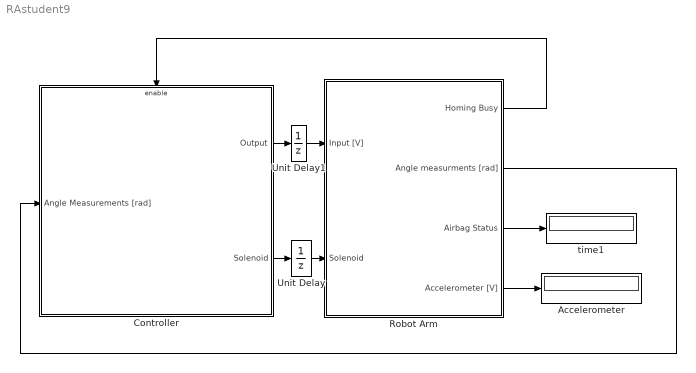
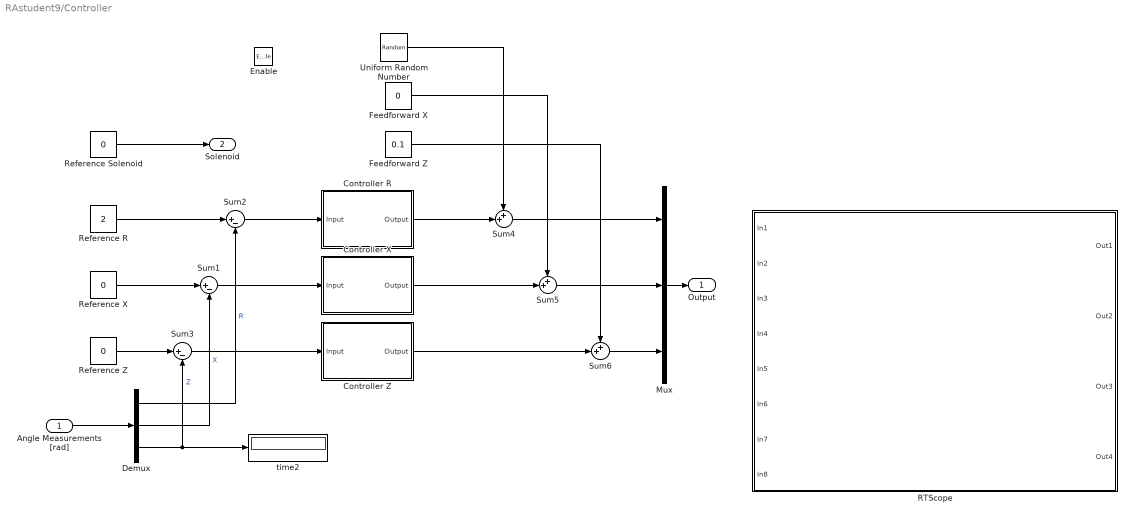
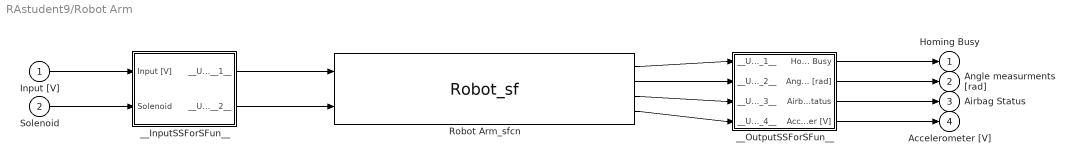
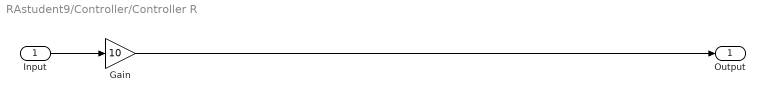
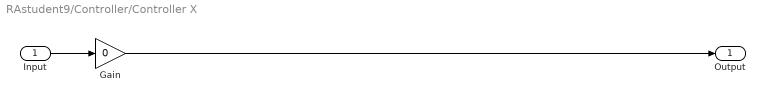
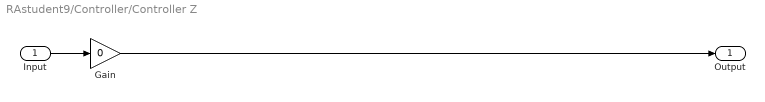
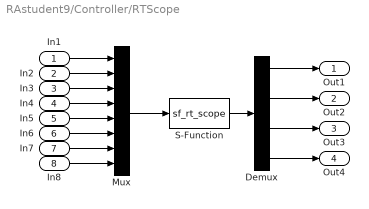
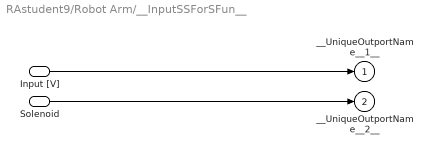
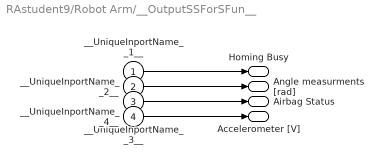
/*
 * RAstudent9.c
 *
 * Academic License - for use in teaching, academic research, and meeting
 * course requirements at degree granting institutions only.  Not for
 * government, commercial, or other organizational use.
 *
 * Code generation for model "RAstudent9".
 *
 * Model version              : 1.899
 * Simulink Coder version : 8.9 (R2015b) 13-Aug-2015
 * C source code generated on : Tue Apr  5 17:09:51 2016
 *
 * Target selection: ectarget.tlc
 * Note: GRT includes extra infrastructure and instrumentation for prototyping
 * Embedded hardware selection: 32-bit Generic
 * Code generation objectives: Unspecified
 * Validation result: Not run
 */

#include "RAstudent9.h"
#include "RAstudent9_private.h"
#include "RAstudent9_dt.h"
#undef S_FUNCTION_NAME
#if !defined(RTW_GENERATED_SFCN_TUNABLE_PRMS_Robot_sf)
#define RTW_GENERATED_SFCN_TUNABLE_PRMS_Robot_sf
#endif

#include "Robot_sf.h"

const real_T RAstudent9_RGND = 0.0;    /* real_T ground */

/* Block signals (auto storage) */
B_RAstudent9_T RAstudent9_B;

/* Block states (auto storage) */
DW_RAstudent9_T RAstudent9_DW;

/* Real-time model */
RT_MODEL_RAstudent9_T RAstudent9_M_;
RT_MODEL_RAstudent9_T *const RAstudent9_M = &RAstudent9_M_;
real_T rt_urand_Upu32_Yd_f_pw_snf(uint32_T *u)
{
  uint32_T lo;
  uint32_T hi;

  /* Uniform random number generator (random number between 0 and 1)

     #define IA      16807                      magic multiplier = 7^5
     #define IM      2147483647                 modulus = 2^31-1
     #define IQ      127773                     IM div IA
     #define IR      2836                       IM modulo IA
     #define S       4.656612875245797e-10      reciprocal of 2^31-1
     test = IA * (seed % IQ) - IR * (seed/IQ)
     seed = test < 0 ? (test + IM) : test
     return (seed*S)
   */
  lo = *u % 127773U * 16807U;
  hi = *u / 127773U * 2836U;
  if (lo < hi) {
    *u = 2147483647U - (hi - lo);
  } else {
    *u = lo - hi;
  }

  return (real_T)*u * 4.6566128752457969E-10;
}

/* Model output function */
void RAstudent9_output(void)
{
  /* Reset subsysRan breadcrumbs */
  srClearBC(RAstudent9_DW.Controller_SubsysRanBC);

  /* UnitDelay: '<Root>/Unit Delay1' */
  RAstudent9_B.UnitDelay1[0] = RAstudent9_DW.UnitDelay1_DSTATE[0];
  RAstudent9_B.UnitDelay1[1] = RAstudent9_DW.UnitDelay1_DSTATE[1];
  RAstudent9_B.UnitDelay1[2] = RAstudent9_DW.UnitDelay1_DSTATE[2];

  /* UnitDelay: '<Root>/Unit Delay' */
  RAstudent9_B.UnitDelay = RAstudent9_DW.UnitDelay_DSTATE;

  /* RTW Generated Level2 S-Function Block: '<S2>/Robot Arm_sfcn' (Robot_sf) */
  {
    SimStruct *rts = RAstudent9_M->childSfunctions[1];
    sfcnOutputs(rts, 0);
  }

  /* Outputs for Enabled SubSystem: '<Root>/Controller' incorporates:
   *  EnablePort: '<S1>/Enable'
   */
  if (RAstudent9_B.RobotArm_sfcn_o1 > 0.0) {
    if (!RAstudent9_DW.Controller_MODE) {
      RAstudent9_DW.Controller_MODE = true;
    }
  } else {
    if (RAstudent9_DW.Controller_MODE) {
      RAstudent9_DW.Controller_MODE = false;
    }
  }

  if (RAstudent9_DW.Controller_MODE) {
    /* UniformRandomNumber: '<S1>/Uniform Random Number' */
    RAstudent9_B.UniformRandomNumber =
      RAstudent9_DW.UniformRandomNumber_NextOutput;

    /* Sum: '<S1>/Sum4' incorporates:
     *  Constant: '<S1>/Reference R'
     *  Gain: '<S3>/Gain'
     *  Sum: '<S1>/Sum2'
     */
    RAstudent9_B.Sum4 = (RAstudent9_P.ReferenceR_Value -
                         RAstudent9_B.RobotArm_sfcn_o2[0]) *
      RAstudent9_P.Gain_Gain + RAstudent9_B.UniformRandomNumber;

    /* Sum: '<S1>/Sum5' incorporates:
     *  Constant: '<S1>/Feedforward X'
     *  Constant: '<S1>/Reference X'
     *  Gain: '<S4>/Gain'
     *  Sum: '<S1>/Sum1'
     */
    RAstudent9_B.Sum5 = (RAstudent9_P.ReferenceX_Value -
                         RAstudent9_B.RobotArm_sfcn_o2[1]) *
      RAstudent9_P.Gain_Gain_e + RAstudent9_P.FeedforwardX_Value;

    /* Sum: '<S1>/Sum6' incorporates:
     *  Constant: '<S1>/Feedforward Z'
     *  Constant: '<S1>/Reference Z'
     *  Gain: '<S5>/Gain'
     *  Sum: '<S1>/Sum3'
     */
    RAstudent9_B.Sum6 = (RAstudent9_P.ReferenceZ_Value -
                         RAstudent9_B.RobotArm_sfcn_o2[2]) *
      RAstudent9_P.Gain_Gain_l + RAstudent9_P.FeedforwardZ_Value;

    /* Constant: '<S1>/Reference Solenoid' */
    RAstudent9_B.ReferenceSolenoid = RAstudent9_P.ReferenceSolenoid_Value;

    /* Level2 S-Function Block: '<S6>/S-Function' (sf_rt_scope) */
    {
      SimStruct *rts = RAstudent9_M->childSfunctions[0];
      sfcnOutputs(rts, 0);
    }

    srUpdateBC(RAstudent9_DW.Controller_SubsysRanBC);
  }

  /* End of Outputs for SubSystem: '<Root>/Controller' */
}

/* Model update function */
void RAstudent9_update(void)
{
  /* Update for UnitDelay: '<Root>/Unit Delay1' */
  RAstudent9_DW.UnitDelay1_DSTATE[0] = RAstudent9_B.Sum4;
  RAstudent9_DW.UnitDelay1_DSTATE[1] = RAstudent9_B.Sum5;
  RAstudent9_DW.UnitDelay1_DSTATE[2] = RAstudent9_B.Sum6;

  /* Update for UnitDelay: '<Root>/Unit Delay' */
  RAstudent9_DW.UnitDelay_DSTATE = RAstudent9_B.ReferenceSolenoid;

  /* RTW Generated Level2 S-Function Block: '<S2>/Robot Arm_sfcn' (Robot_sf) */
  {
    SimStruct *rts = RAstudent9_M->childSfunctions[1];
    sfcnUpdate(rts, 0);
    if (ssGetErrorStatus(rts) != (NULL))
      return;
  }

  /* Update for Enabled SubSystem: '<Root>/Controller' incorporates:
   *  Update for EnablePort: '<S1>/Enable'
   */
  if (RAstudent9_DW.Controller_MODE) {
    /* Update for UniformRandomNumber: '<S1>/Uniform Random Number' */
    RAstudent9_DW.UniformRandomNumber_NextOutput =
      (RAstudent9_P.UniformRandomNumber_Maximum -
       RAstudent9_P.UniformRandomNumber_Minimum) * rt_urand_Upu32_Yd_f_pw_snf
      (&RAstudent9_DW.RandSeed) + RAstudent9_P.UniformRandomNumber_Minimum;
  }

  /* End of Update for SubSystem: '<Root>/Controller' */

  /* Update absolute time for base rate */
  /* The "clockTick0" counts the number of times the code of this task has
   * been executed. The absolute time is the multiplication of "clockTick0"
   * and "Timing.stepSize0". Size of "clockTick0" ensures timer will not
   * overflow during the application lifespan selected.
   * Timer of this task consists of two 32 bit unsigned integers.
   * The two integers represent the low bits Timing.clockTick0 and the high bits
   * Timing.clockTickH0. When the low bit overflows to 0, the high bits increment.
   */
  if (!(++RAstudent9_M->Timing.clockTick0)) {
    ++RAstudent9_M->Timing.clockTickH0;
  }

  RAstudent9_M->Timing.t[0] = RAstudent9_M->Timing.clockTick0 *
    RAstudent9_M->Timing.stepSize0 + RAstudent9_M->Timing.clockTickH0 *
    RAstudent9_M->Timing.stepSize0 * 4294967296.0;

  {
    /* Update absolute timer for sample time: [0.000244140625s, 0.0s] */
    /* The "clockTick1" counts the number of times the code of this task has
     * been executed. The absolute time is the multiplication of "clockTick1"
     * and "Timing.stepSize1". Size of "clockTick1" ensures timer will not
     * overflow during the application lifespan selected.
     * Timer of this task consists of two 32 bit unsigned integers.
     * The two integers represent the low bits Timing.clockTick1 and the high bits
     * Timing.clockTickH1. When the low bit overflows to 0, the high bits increment.
     */
    if (!(++RAstudent9_M->Timing.clockTick1)) {
      ++RAstudent9_M->Timing.clockTickH1;
    }

    RAstudent9_M->Timing.t[1] = RAstudent9_M->Timing.clockTick1 *
      RAstudent9_M->Timing.stepSize1 + RAstudent9_M->Timing.clockTickH1 *
      RAstudent9_M->Timing.stepSize1 * 4294967296.0;
  }
}
